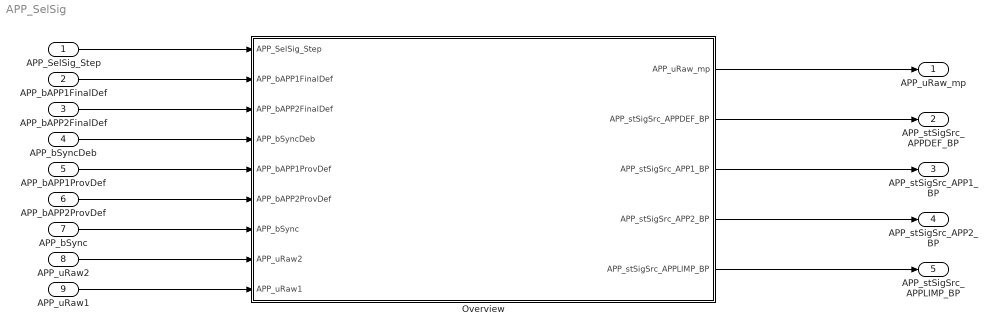
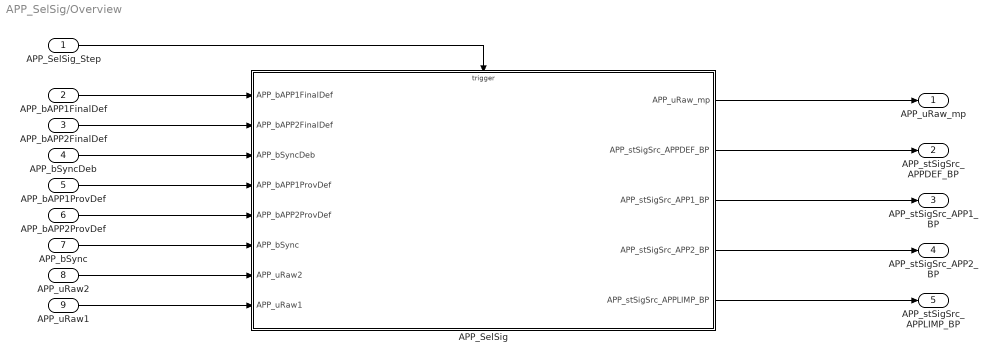
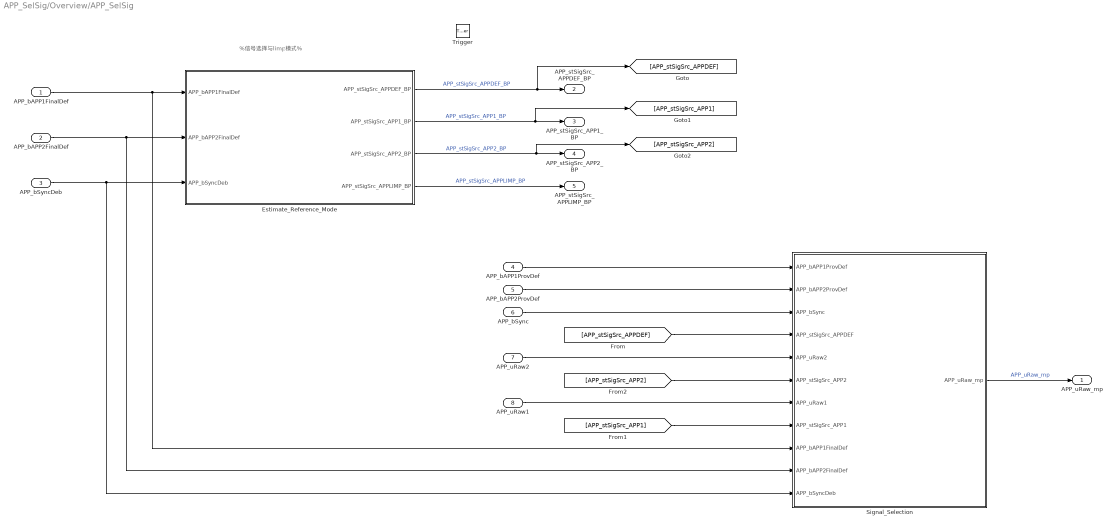
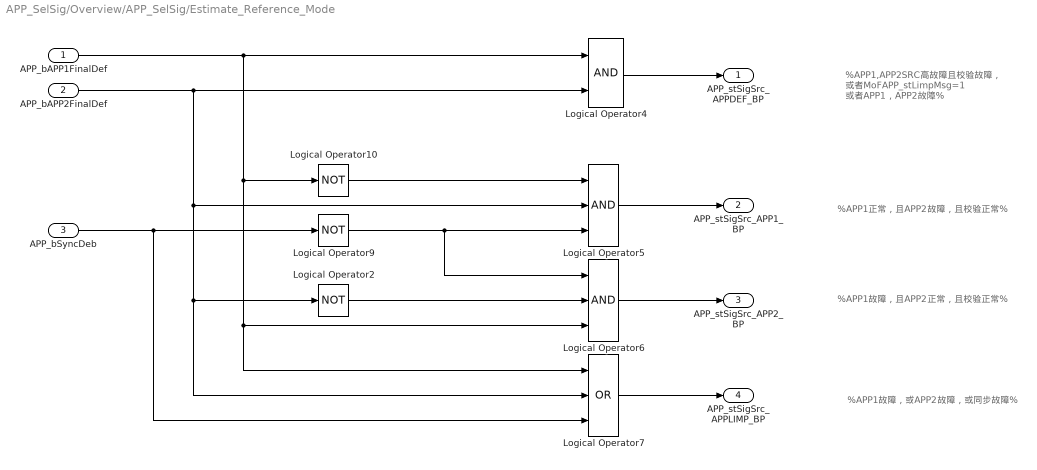
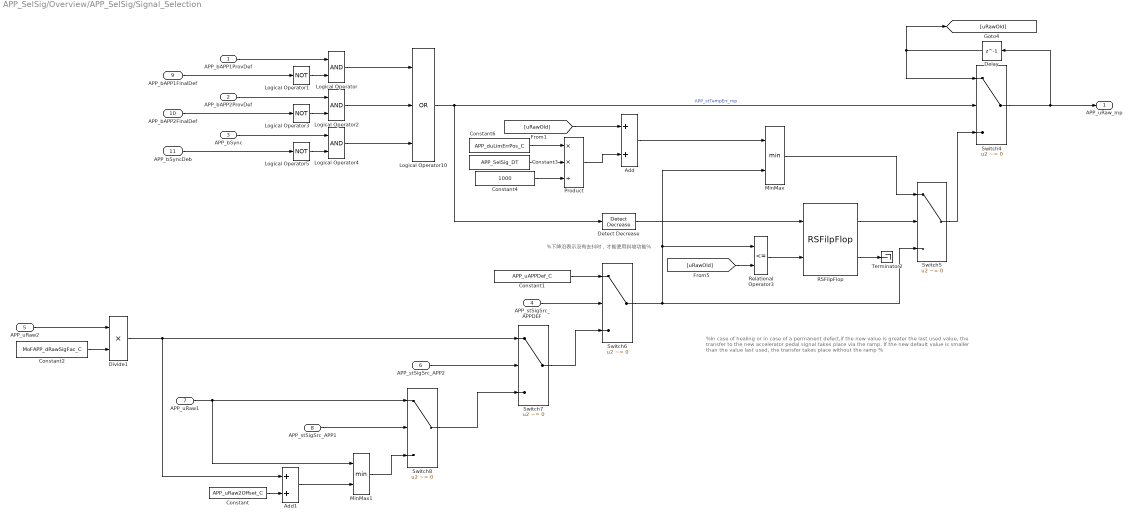
/*
 * File: APP_SelSig.c
 *
 * Code generated for Simulink model 'APP_SelSig'.
 *
 * Model version                  : 1.53
 * Simulink Coder version         : 9.4 (R2020b) 29-Jul-2020
 * C/C++ source code generated on : Thu Feb  4 09:43:10 2021
 *
 * Target selection: ert.tlc
 * Embedded hardware selection: ARM Compatible->ARM Cortex
 * Code generation objectives: Unspecified
 * Validation result: Not run
 */

#include "APP_SelSig.h"
#include "div_nde_s32_floor.h"
#ifndef UCHAR_MAX
#include <limits.h>
#endif

#if ( UCHAR_MAX != (0xFFU) ) || ( SCHAR_MAX != (0x7F) )
#error Code was generated for compiler with different sized uchar/char. \
Consider adjusting Test hardware word size settings on the \
Hardware Implementation pane to match your compiler word sizes as \
defined in limits.h of the compiler. Alternatively, you can \
select the Test hardware is the same as production hardware option and \
select the Enable portable word sizes option on the Code Generation > \
Verification pane for ERT based targets, which will disable the \
preprocessor word size checks.
#endif

#if ( USHRT_MAX != (0xFFFFU) ) || ( SHRT_MAX != (0x7FFF) )
#error Code was generated for compiler with different sized ushort/short. \
Consider adjusting Test hardware word size settings on the \
Hardware Implementation pane to match your compiler word sizes as \
defined in limits.h of the compiler. Alternatively, you can \
select the Test hardware is the same as production hardware option and \
select the Enable portable word sizes option on the Code Generation > \
Verification pane for ERT based targets, which will disable the \
preprocessor word size checks.
#endif

#if ( UINT_MAX != (0xFFFFFFFFU) ) || ( INT_MAX != (0x7FFFFFFF) )
#error Code was generated for compiler with different sized uint/int. \
Consider adjusting Test hardware word size settings on the \
Hardware Implementation pane to match your compiler word sizes as \
defined in limits.h of the compiler. Alternatively, you can \
select the Test hardware is the same as production hardware option and \
select the Enable portable word sizes option on the Code Generation > \
Verification pane for ERT based targets, which will disable the \
preprocessor word size checks.
#endif

#if ( ULONG_MAX != (0xFFFFFFFFU) ) || ( LONG_MAX != (0x7FFFFFFF) )
#error Code was generated for compiler with different sized ulong/long. \
Consider adjusting Test hardware word size settings on the \
Hardware Implementation pane to match your compiler word sizes as \
defined in limits.h of the compiler. Alternatively, you can \
select the Test hardware is the same as production hardware option and \
select the Enable portable word sizes option on the Code Generation > \
Verification pane for ERT based targets, which will disable the \
preprocessor word size checks.
#endif

/* Exported block signals */
Volt_mV APP_uRaw_mp;                   /* '<S4>/Switch4'
                                        * Acceleration pedal position raw value
                                        */
boolean_T APP_stSigSrc_APP1_BP;        /* '<S3>/Logical Operator5'
                                        * Sensor 1 is the reference variable, Sensor 2 value is defective
                                        */
boolean_T APP_stSigSrc_APP2_BP;        /* '<S3>/Logical Operator6'
                                        * Sensor 2 is the reference variable,Sensor1 value is defective
                                        */
boolean_T APP_stSigSrc_APPDEF_BP;      /* '<S3>/Logical Operator4'
                                        * both the sensors are defective. Use the default value
                                        */
boolean_T APP_stTempErr_mp;            /* '<S4>/Logical Operator10'
                                        * Status for temporary errors
                                        */
boolean_T APP_stSigSrc_APPLIMP_BP;     /* '<S3>/Logical Operator7'
                                        * Substitute operation active, accelerator pedal sensor value and accelerator pedal sensor increase are limited
                                        */

/* Block states (default storage) */
DW_APP_SelSig_T APP_SelSig_DW;

/* Real-time model */
static RT_MODEL_APP_SelSig_T APP_SelSig_M_;
RT_MODEL_APP_SelSig_T *const APP_SelSig_M = &APP_SelSig_M_;

/* Model step function */
void APP_SelSig_Step(void)
{
  Volt_mV rtb_Divide1;
  boolean_T APP_stSigSrc_APP1_BP_tmp;
  boolean_T APP_stSigSrc_APP2_BP_tmp;
  boolean_T rtb_LogicalOperator9_tmp;
  boolean_T rtb_Uk1;

  /* RootInportFunctionCallGenerator generated from: '<Root>/APP_SelSig_Step' incorporates:
   *  SubSystem: '<S1>/APP_SelSig'
   */
  /* Logic: '<S3>/Logical Operator9' incorporates:
   *  Inport: '<Root>/APP_bSyncDeb'
   *  Logic: '<S4>/Logical Operator5'
   *
   * Block description for '<Root>/APP_bSyncDeb':
   *  Status debounced sync check
   */
  rtb_LogicalOperator9_tmp = !APP_bSyncDeb;

  /* Logic: '<S3>/Logical Operator10' incorporates:
   *  Inport: '<Root>/APP_bAPP1FinalDef'
   *  Logic: '<S4>/Logical Operator1'
   *
   * Block description for '<Root>/APP_bAPP1FinalDef':
   *  Status Sensor 1 of the acceleration pedal finally defect
   */
  APP_stSigSrc_APP1_BP_tmp = !APP_bAPP1FinalDef;

  /* Logic: '<S3>/Logical Operator5' incorporates:
   *  Inport: '<Root>/APP_bAPP2FinalDef'
   *  Logic: '<S3>/Logical Operator10'
   *  Logic: '<S3>/Logical Operator9'
   *
   * Block description for '<Root>/APP_bAPP2FinalDef':
   *  Status Sensor 2 of the acceleration pedal finally defect
   */
  APP_stSigSrc_APP1_BP = (APP_stSigSrc_APP1_BP_tmp && APP_bAPP2FinalDef &&
    rtb_LogicalOperator9_tmp);

  /* Product: '<S4>/Divide1' incorporates:
   *  Constant: '<S4>/Constant2'
   *  Inport: '<Root>/APP_uRaw2'
   *
   * Block description for '<Root>/APP_uRaw2':
   *  Acceleration Pedal Position E
   */
  rtb_Divide1 = (Volt_mV)(((int16_T)((APP_uRaw2 * MoFAPP_dRawSigFac_C) >> 10) *
    16777) >> 14);

  /* Logic: '<S3>/Logical Operator2' incorporates:
   *  Inport: '<Root>/APP_bAPP2FinalDef'
   *  Logic: '<S4>/Logical Operator3'
   *
   * Block description for '<Root>/APP_bAPP2FinalDef':
   *  Status Sensor 2 of the acceleration pedal finally defect
   */
  APP_stSigSrc_APP2_BP_tmp = !APP_bAPP2FinalDef;

  /* Logic: '<S3>/Logical Operator6' incorporates:
   *  Inport: '<Root>/APP_bAPP1FinalDef'
   *  Logic: '<S3>/Logical Operator2'
   *  Logic: '<S3>/Logical Operator9'
   *
   * Block description for '<Root>/APP_bAPP1FinalDef':
   *  Status Sensor 1 of the acceleration pedal finally defect
   */
  APP_stSigSrc_APP2_BP = (rtb_LogicalOperator9_tmp && APP_stSigSrc_APP2_BP_tmp &&
    APP_bAPP1FinalDef);

  /* Logic: '<S3>/Logical Operator4' incorporates:
   *  Inport: '<Root>/APP_bAPP1FinalDef'
   *  Inport: '<Root>/APP_bAPP2FinalDef'
   *
   * Block description for '<Root>/APP_bAPP1FinalDef':
   *  Status Sensor 1 of the acceleration pedal finally defect
   *
   * Block description for '<Root>/APP_bAPP2FinalDef':
   *  Status Sensor 2 of the acceleration pedal finally defect
   */
  APP_stSigSrc_APPDEF_BP = (APP_bAPP1FinalDef && APP_bAPP2FinalDef);

  /* Switch: '<S4>/Switch6' incorporates:
   *  Constant: '<S4>/Constant1'
   *  Switch: '<S4>/Switch7'
   */
  if (APP_stSigSrc_APPDEF_BP) {
    rtb_Divide1 = APP_uAPPDef_C;
  } else {
    if (!APP_stSigSrc_APP2_BP) {
      /* Switch: '<S4>/Switch8' incorporates:
       *  Inport: '<Root>/APP_uRaw1'
       *  Switch: '<S4>/Switch7'
       *
       * Block description for '<Root>/APP_uRaw1':
       *  Acceleration Pedal Position D
       */
      if (APP_stSigSrc_APP1_BP) {
        rtb_Divide1 = APP_uRaw1;
      } else {
        /* Sum: '<S4>/Add1' incorporates:
         *  Constant: '<S4>/Constant'
         */
        rtb_Divide1 += APP_uRaw2Offset_C;

        /* MinMax: '<S4>/MinMax1' incorporates:
         *  Inport: '<Root>/APP_uRaw1'
         *
         * Block description for '<Root>/APP_uRaw1':
         *  Acceleration Pedal Position D
         */
        if (APP_uRaw1 < rtb_Divide1) {
          rtb_Divide1 = APP_uRaw1;
        }

        /* End of MinMax: '<S4>/MinMax1' */
      }

      /* End of Switch: '<S4>/Switch8' */
    }
  }

  /* End of Switch: '<S4>/Switch6' */

  /* UnitDelay: '<S5>/Delay Input1'
   *
   * Block description for '<S5>/Delay Input1':
   *
   *  Store in Global RAM
   */
  rtb_Uk1 = APP_stTempErr_mp;

  /* Logic: '<S4>/Logical Operator10' incorporates:
   *  Inport: '<Root>/APP_bAPP1ProvDef'
   *  Inport: '<Root>/APP_bAPP2ProvDef'
   *  Inport: '<Root>/APP_bSync'
   *  Logic: '<S4>/Logical Operator'
   *  Logic: '<S4>/Logical Operator2'
   *  Logic: '<S4>/Logical Operator4'
   *
   * Block description for '<Root>/APP_bAPP1ProvDef':
   *  Status Sensor 1 of the acceleration pedal temporary defect
   *
   * Block description for '<Root>/APP_bAPP2ProvDef':
   *  Status Sensor 2 of the acceleration pedal temporary defect
   *
   * Block description for '<Root>/APP_bSync':
   *  Status temporary sync check
   */
  APP_stTempErr_mp = ((APP_bAPP1ProvDef && APP_stSigSrc_APP1_BP_tmp) ||
                      (APP_bAPP2ProvDef && APP_stSigSrc_APP2_BP_tmp) ||
                      (APP_bSync && rtb_LogicalOperator9_tmp));

  /* Switch: '<S6>/Switch' incorporates:
   *  Constant: '<S6>/Constant'
   *  Delay: '<S4>/Delay'
   *  RelationalOperator: '<S4>/Relational Operator3'
   *  RelationalOperator: '<S5>/FixPt Relational Operator'
   *  UnitDelay: '<S6>/Unit Delay'
   */
  if (rtb_Divide1 <= APP_uRaw_mp) {
    APP_SelSig_DW.UnitDelay_DSTATE = false;
  } else {
    APP_SelSig_DW.UnitDelay_DSTATE = (((int32_T)APP_stTempErr_mp < (int32_T)
      rtb_Uk1) || APP_SelSig_DW.UnitDelay_DSTATE);
  }

  /* End of Switch: '<S6>/Switch' */

  /* Switch: '<S4>/Switch4' */
  if (!APP_stTempErr_mp) {
    /* Switch: '<S4>/Switch5' incorporates:
     *  UnitDelay: '<S6>/Unit Delay'
     */
    if (APP_SelSig_DW.UnitDelay_DSTATE) {
      /* Sum: '<S4>/Add' incorporates:
       *  Constant: '<S4>/Constant3'
       *  Constant: '<S4>/Constant4'
       *  Constant: '<S4>/Constant6'
       *  Delay: '<S4>/Delay'
       *  Product: '<S4>/Product'
       */
      APP_uRaw_mp += (int16_T)div_nde_s32_floor((int16_T)(APP_duLimErrPos_C * 10),
        1000);

      /* MinMax: '<S4>/MinMax' */
      if (APP_uRaw_mp >= rtb_Divide1) {
        /* Sum: '<S4>/Add' incorporates:
         *  Switch: '<S4>/Switch4'
         */
        APP_uRaw_mp = rtb_Divide1;
      }

      /* End of MinMax: '<S4>/MinMax' */
    } else {
      /* Sum: '<S4>/Add' incorporates:
       *  Switch: '<S4>/Switch4'
       */
      APP_uRaw_mp = rtb_Divide1;
    }

    /* End of Switch: '<S4>/Switch5' */
  }

  /* End of Switch: '<S4>/Switch4' */

  /* Logic: '<S3>/Logical Operator7' incorporates:
   *  Inport: '<Root>/APP_bAPP1FinalDef'
   *  Inport: '<Root>/APP_bAPP2FinalDef'
   *  Inport: '<Root>/APP_bSyncDeb'
   *
   * Block description for '<Root>/APP_bAPP1FinalDef':
   *  Status Sensor 1 of the acceleration pedal finally defect
   *
   * Block description for '<Root>/APP_bAPP2FinalDef':
   *  Status Sensor 2 of the acceleration pedal finally defect
   *
   * Block description for '<Root>/APP_bSyncDeb':
   *  Status debounced sync check
   */
  APP_stSigSrc_APPLIMP_BP = (APP_bAPP1FinalDef || APP_bAPP2FinalDef ||
    APP_bSyncDeb);

  /* End of Outputs for RootInportFunctionCallGenerator generated from: '<Root>/APP_SelSig_Step' */
}
